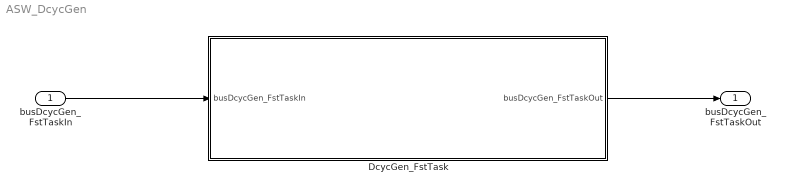
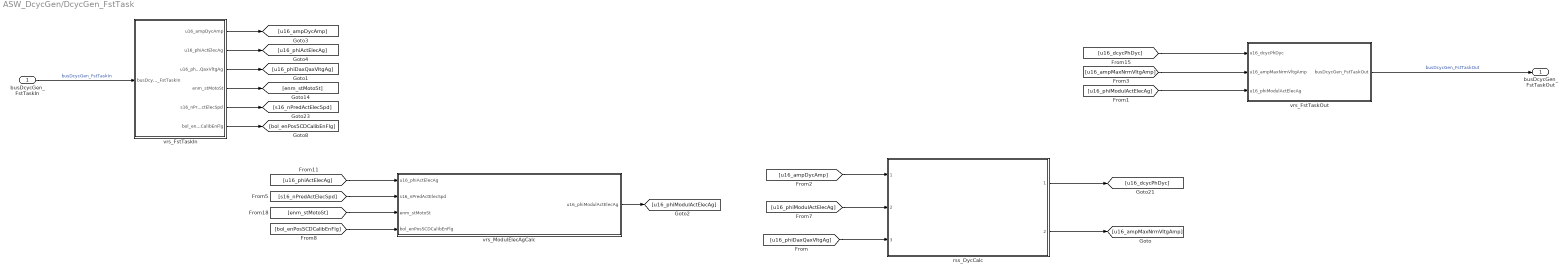
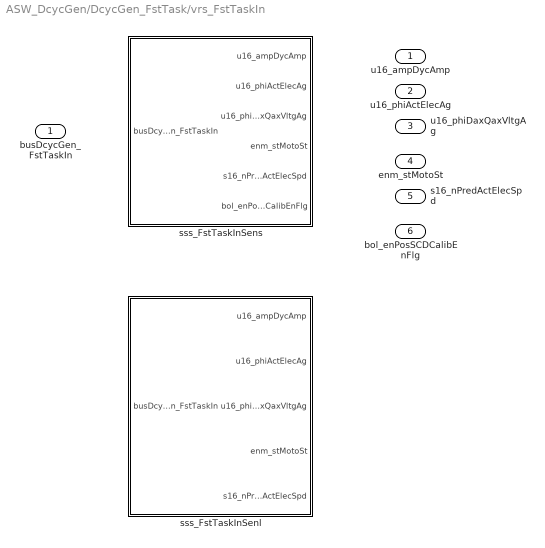
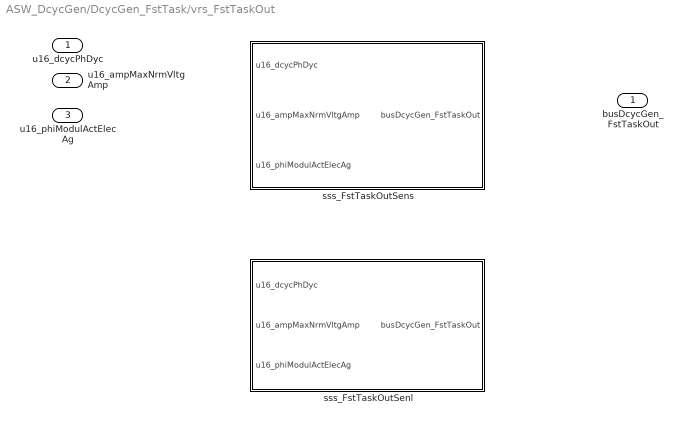
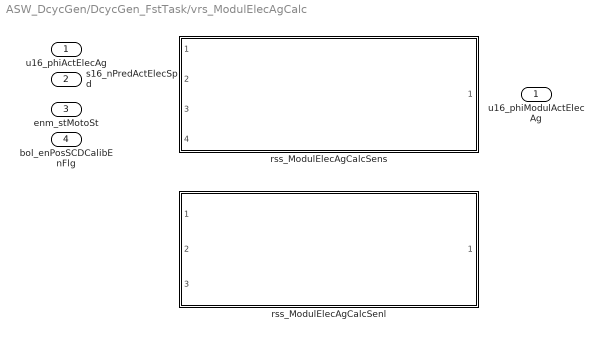
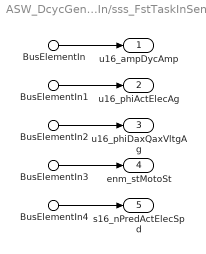
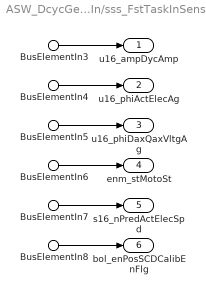
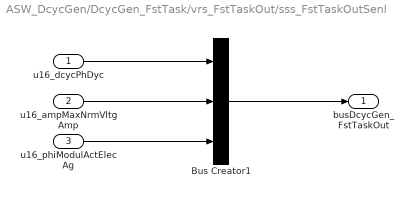
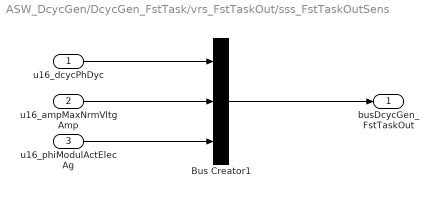
/*
 * File: ASW_DcycGen.c
 *
 * Code generated for Simulink model 'ASW_DcycGen'.
 *
 * Model version                  : 6.161
 * Simulink Coder version         : 9.9 (R2023a) 19-Nov-2022
 * C/C++ source code generated on : Wed Apr  2 08:52:27 2025
 *
 * Target selection: ert.tlc
 * Embedded hardware selection: ARM Compatible->ARM Cortex-M
 * Code generation objectives: Unspecified
 * Validation result: Not run
 */

#include "ASW_DcycGen.h"
#include "ASW_DcycGen_private.h"
#include "motor_control_interface.h"
#include "rtwtypes.h"
#include "custom_type_definition.h"
#include "motor_control_param.h"
#include <string.h>

const BUS_DCYCGEN_FST_TASK_OUT ASW_DcycGen_rtZBUS_DCYCGEN_FST_TASK_OUT = {
  {
    0U, 0U, 0U }
  ,                                    /* u16_dcycPhDyc */
  0U,                                  /* u16_ampMaxNrmVltgAmp */
  0U                                   /* u16_phiModulActElecAg */
};                                     /* BUS_DCYCGEN_FST_TASK_OUT ground */

/* Exported block signals */
BUS_DCYCGEN_FST_TASK_IN busDcycGen_FstTaskIn;/* '<Root>/busDcycGen_FstTaskIn' */
BUS_DCYCGEN_FST_TASK_OUT busDcycGen_FstTaskOut;/* '<S82>/Bus Creator1' */

/* Block states (default storage) */
DW_ASW_DcycGen ASW_DcycGen_DW;
const BUS_DCYCGEN_FST_TASK_IN ASW_DcycGen_rtZBUS_DCYCGEN_FST_ = { 0U,/* u16_ampDycAmp */
  0U,                                  /* u16_phiActElecAg */
  0U,                                  /* u16_phiDaxQaxVltgAg */
  0U,                                  /* enm_stMotoSt */
  0,                                   /* s16_nPredActElecSpd */
  false                                /* bol_enPosSCDCalibEnFlg */
};

/* Output and update for atomic system: '<Root>/DcycGen_FstTask' */
void DcycGen_FstTask(void)
{
  dt_RadAng_u16r15b0 tmp_0;
  dt_Standardize_s16p15b0 tmp;
  sint16 rtb_Switch1;
  uint16 rtb_Add1;
  uint16 rtb_Add1_agvg;
  uint16 rtb_Add1_cvlw;
  uint16 rtb_Add1_hqrl;
  uint16 rtb_Add1_l2i3;
  uint16 rtb_Saturation_0;
  uint16 rtb_Sum;
  boolean rtb_LogicalOperator;
  boolean tmp_1;

  /* Saturate: '<S2>/Saturation' incorporates:
   *  Inport: '<Root>/busDcycGen_FstTaskIn'
   */
  if (busDcycGen_FstTaskIn.u16_ampDycAmp <= 32768) {
    rtb_Saturation_0 = busDcycGen_FstTaskIn.u16_ampDycAmp;
  } else {
    rtb_Saturation_0 = 32768U;
  }

  /* Logic: '<S83>/Logical Operator' incorporates:
   *  Constant: '<S84>/Constant'
   *  Inport: '<Root>/busDcycGen_FstTaskIn'
   *  RelationalOperator: '<S84>/Compare'
   */
  rtb_LogicalOperator = ((busDcycGen_FstTaskIn.enm_stMotoSt != CLOSED_LOOP) ||
    (busDcycGen_FstTaskIn.bol_enPosSCDCalibEnFlg));

  /* Switch: '<S89>/Switch1' incorporates:
   *  Constant: '<S89>/Constant'
   *  Gain: '<S83>/Gain'
   *  Logic: '<S89>/NOT'
   *  Product: '<S89>/Product1'
   *  Saturate: '<S83>/Saturation'
   */
  if (!rtb_LogicalOperator) {
    /* Saturate: '<S83>/Saturation' incorporates:
     *  Inport: '<Root>/busDcycGen_FstTaskIn'
     */
    if (busDcycGen_FstTaskIn.s16_nPredActElecSpd >= -32767) {
      tmp = busDcycGen_FstTaskIn.s16_nPredActElecSpd;
    } else {
      tmp = -32767;
    }

    rtb_Switch1 = (sint16)(((tmp >> 1) * 16777) >> 14);
  } else {
    rtb_Switch1 = 0;
  }

  /* End of Switch: '<S89>/Switch1' */

  /* Switch: '<S94>/Switch1' incorporates:
   *  Constant: '<S94>/Constant1'
   *  UnitDelay: '<S94>/Unit Delay1'
   */
  if (ASW_DcycGen_DW.bitsForTID0.UnitDelay1_DSTATE) {
    tmp_1 = rtb_LogicalOperator;
  } else {
    tmp_1 = true;
  }

  /* Switch: '<S94>/Switch' incorporates:
   *  Inport: '<Root>/busDcycGen_FstTaskIn'
   *  Switch: '<S94>/Switch1'
   *  UnitDelay: '<S94>/Unit Delay'
   */
  if (tmp_1) {
    tmp_0 = busDcycGen_FstTaskIn.u16_phiActElecAg;
  } else {
    tmp_0 = ASW_DcycGen_DW.UnitDelay_DSTATE;
  }

  /* Sum: '<S89>/Sum' incorporates:
   *  Switch: '<S89>/Switch1'
   *  Switch: '<S94>/Switch'
   */
  rtb_Sum = (uint16)((((rtb_Switch1 * 20861) >> 2) + (tmp_0 << 14)) >> 14);

  /* SwitchCase: '<S2>/Switch Case' incorporates:
   *  Constant: '<S2>/Constant'
   *  DataTypeConversion: '<S2>/Data Type Conversion'
   */
  switch (Genm_modePWMMode_C) {
   case 1:
    /* Outputs for IfAction SubSystem: '<S2>/sas_SinuPWM' incorporates:
     *  ActionPort: '<S10>/Action Port'
     */
    /* Sum: '<S67>/Add1' incorporates:
     *  Constant: '<S67>/Constant'
     *  Inport: '<Root>/busDcycGen_FstTaskIn'
     *  Sum: '<S67>/Add'
     *  Sum: '<S89>/Sum'
     *  Switch: '<S89>/Switch'
     */
    rtb_Add1_agvg = (uint16)(((uint32)rtb_Sum) + ((uint16)
      (busDcycGen_FstTaskIn.u16_phiDaxQaxVltgAg - 16384)));

    /* SignalConversion generated from: '<S10>/u16_dcycPhDycCs1' incorporates:
     *  Constant: '<S71>/Constant'
     *  Constant: '<S71>/Constant1'
     *  Constant: '<S71>/Constant2'
     *  Constant: '<S71>/Constant3'
     *  Constant: '<S71>/Constant4'
     *  Constant: '<S71>/Constant5'
     *  Constant: '<S78>/Constant'
     *  Gain: '<S71>/Gain'
     *  Merge: '<S2>/Merge'
     *  Product: '<S71>/Divide'
     *  Product: '<S71>/Product'
     *  Saturate: '<S2>/Saturation'
     *  Selector: '<S71>/Selector'
     *  Selector: '<S71>/Selector1'
     *  Selector: '<S71>/Selector2'
     *  Sum: '<S67>/Add1'
     *  Sum: '<S71>/Add'
     *  Sum: '<S71>/Add3'
     *  Sum: '<S78>/Add'
     */
    busDcycGen_FstTaskOut.u16_dcycPhDyc[0] = (dt_DutyCycl_u16p15b0)
      (((((rtb_Saturation_0 * rtCP_Constant2_Value[(uint16)((1023U * ((((uint32)
                rtb_Add1_agvg) << 15) / 65535U)) >> 15)]) >> 15) << 1) + 32768) >>
       1);
    busDcycGen_FstTaskOut.u16_dcycPhDyc[1] = (dt_DutyCycl_u16p15b0)
      (((((rtb_Saturation_0 * rtCP_Constant3_Value[(uint16)((1023U * ((((uint32)
                ((uint16)(rtb_Add1_agvg - 21845))) << 15) / 65535U)) >> 15)]) >>
          15) << 1) + 32768) >> 1);
    busDcycGen_FstTaskOut.u16_dcycPhDyc[2] = (dt_DutyCycl_u16p15b0)
      (((((rtb_Saturation_0 * rtCP_Constant4_Value[(uint16)((1023U * ((((uint32)
                ((uint16)(rtb_Add1_agvg - 43691))) << 15) / 65535U)) >> 15)]) >>
          15) << 1) + 32768) >> 1);

    /* SignalConversion generated from: '<S10>/u16_ampMaxNrmVltgAmpCs1' incorporates:
     *  Constant: '<S67>/Constant3'
     *  Merge: '<S2>/Merge1'
     *  Product: '<S67>/Product1'
     */
    busDcycGen_FstTaskOut.u16_ampMaxNrmVltgAmp = (dt_DutyCycl_u16p15b0)(((uint32)
      Gu16_facOvrModulFac_C) >> 1);

    /* End of Outputs for SubSystem: '<S2>/sas_SinuPWM' */
    break;

   case 2:
    /* Outputs for IfAction SubSystem: '<S2>/sas_SinuAddThrdHarmPWM' incorporates:
     *  ActionPort: '<S9>/Action Port'
     */
    /* Sum: '<S53>/Add1' incorporates:
     *  Constant: '<S53>/Constant'
     *  Inport: '<Root>/busDcycGen_FstTaskIn'
     *  Sum: '<S53>/Add'
     *  Sum: '<S89>/Sum'
     *  Switch: '<S89>/Switch'
     */
    rtb_Add1_cvlw = (uint16)(((uint32)rtb_Sum) + ((uint16)
      (busDcycGen_FstTaskIn.u16_phiDaxQaxVltgAg - 16384)));

    /* SignalConversion generated from: '<S9>/u16_dcycPhDycCs2' incorporates:
     *  Constant: '<S57>/Constant'
     *  Constant: '<S57>/Constant1'
     *  Constant: '<S57>/Constant2'
     *  Constant: '<S57>/Constant3'
     *  Constant: '<S57>/Constant4'
     *  Constant: '<S57>/Constant5'
     *  Constant: '<S64>/Constant'
     *  Gain: '<S57>/Gain'
     *  Merge: '<S2>/Merge'
     *  Product: '<S57>/Divide'
     *  Product: '<S57>/Product'
     *  Saturate: '<S2>/Saturation'
     *  Selector: '<S57>/Selector'
     *  Selector: '<S57>/Selector1'
     *  Selector: '<S57>/Selector2'
     *  Sum: '<S53>/Add1'
     *  Sum: '<S57>/Add'
     *  Sum: '<S57>/Add3'
     *  Sum: '<S64>/Add'
     */
    busDcycGen_FstTaskOut.u16_dcycPhDyc[0] = (dt_DutyCycl_u16p15b0)
      (((((rtb_Saturation_0 * rtCP_Constant2_Value_o0nc[(uint16)((1023U *
             ((((uint32)rtb_Add1_cvlw) << 15) / 65535U)) >> 15)]) >> 15) << 1) +
        32768) >> 1);
    busDcycGen_FstTaskOut.u16_dcycPhDyc[1] = (dt_DutyCycl_u16p15b0)
      (((((rtb_Saturation_0 * rtCP_Constant3_Value_plsi[(uint16)((1023U *
             ((((uint32)((uint16)(rtb_Add1_cvlw - 21845))) << 15) / 65535U)) >>
            15)]) >> 15) << 1) + 32768) >> 1);
    busDcycGen_FstTaskOut.u16_dcycPhDyc[2] = (dt_DutyCycl_u16p15b0)
      (((((rtb_Saturation_0 * rtCP_Constant4_Value_dztf[(uint16)((1023U *
             ((((uint32)((uint16)(rtb_Add1_cvlw - 43691))) << 15) / 65535U)) >>
            15)]) >> 15) << 1) + 32768) >> 1);

    /* SignalConversion generated from: '<S9>/u16_ampMaxNrmVltgAmpCs2' incorporates:
     *  Constant: '<S53>/Constant1'
     *  Constant: '<S53>/Constant3'
     *  Merge: '<S2>/Merge1'
     *  Product: '<S53>/Product1'
     */
    busDcycGen_FstTaskOut.u16_ampMaxNrmVltgAmp = (dt_DutyCycl_u16p15b0)((18919U *
      Gu16_facOvrModulFac_C) >> 15);

    /* End of Outputs for SubSystem: '<S2>/sas_SinuAddThrdHarmPWM' */
    break;

   case 3:
    /* Outputs for IfAction SubSystem: '<S2>/sas_SVPWM' incorporates:
     *  ActionPort: '<S8>/Action Port'
     */
    /* Sum: '<S39>/Add1' incorporates:
     *  Constant: '<S39>/Constant'
     *  Inport: '<Root>/busDcycGen_FstTaskIn'
     *  Sum: '<S39>/Add'
     *  Sum: '<S89>/Sum'
     *  Switch: '<S89>/Switch'
     */
    rtb_Add1_l2i3 = (uint16)(((uint32)rtb_Sum) + ((uint16)
      (busDcycGen_FstTaskIn.u16_phiDaxQaxVltgAg - 16384)));

    /* SignalConversion generated from: '<S8>/u16_dcycPhDycCs3' incorporates:
     *  Constant: '<S43>/Constant'
     *  Constant: '<S43>/Constant1'
     *  Constant: '<S43>/Constant2'
     *  Constant: '<S43>/Constant3'
     *  Constant: '<S43>/Constant4'
     *  Constant: '<S43>/Constant5'
     *  Constant: '<S50>/Constant'
     *  Gain: '<S43>/Gain'
     *  Merge: '<S2>/Merge'
     *  Product: '<S43>/Divide'
     *  Product: '<S43>/Product'
     *  Saturate: '<S2>/Saturation'
     *  Selector: '<S43>/Selector'
     *  Selector: '<S43>/Selector1'
     *  Selector: '<S43>/Selector2'
     *  Sum: '<S39>/Add1'
     *  Sum: '<S43>/Add'
     *  Sum: '<S43>/Add3'
     *  Sum: '<S50>/Add'
     */
    busDcycGen_FstTaskOut.u16_dcycPhDyc[0] = (dt_DutyCycl_u16p15b0)
      (((((rtb_Saturation_0 * rtCP_Constant2_Value_oxew[(uint16)((1023U *
             ((((uint32)rtb_Add1_l2i3) << 15) / 65535U)) >> 15)]) >> 15) << 1) +
        32768) >> 1);
    busDcycGen_FstTaskOut.u16_dcycPhDyc[1] = (dt_DutyCycl_u16p15b0)
      (((((rtb_Saturation_0 * rtCP_Constant3_Value_dctq[(uint16)((1023U *
             ((((uint32)((uint16)(rtb_Add1_l2i3 - 21845))) << 15) / 65535U)) >>
            15)]) >> 15) << 1) + 32768) >> 1);
    busDcycGen_FstTaskOut.u16_dcycPhDyc[2] = (dt_DutyCycl_u16p15b0)
      (((((rtb_Saturation_0 * rtCP_Constant4_Value_hsqu[(uint16)((1023U *
             ((((uint32)((uint16)(rtb_Add1_l2i3 - 43691))) << 15) / 65535U)) >>
            15)]) >> 15) << 1) + 32768) >> 1);

    /* SignalConversion generated from: '<S8>/u16_ampMaxNrmVltgAmpCs3' incorporates:
     *  Constant: '<S39>/Constant1'
     *  Constant: '<S39>/Constant3'
     *  Merge: '<S2>/Merge1'
     *  Product: '<S39>/Product1'
     */
    busDcycGen_FstTaskOut.u16_ampMaxNrmVltgAmp = (dt_DutyCycl_u16p15b0)((18919U *
      Gu16_facOvrModulFac_C) >> 15);

    /* End of Outputs for SubSystem: '<S2>/sas_SVPWM' */
    break;

   case 4:
    /* Outputs for IfAction SubSystem: '<S2>/sas_DisnMinPWM' incorporates:
     *  ActionPort: '<S7>/Action Port'
     */
    /* Sum: '<S25>/Add1' incorporates:
     *  Constant: '<S25>/Constant'
     *  Inport: '<Root>/busDcycGen_FstTaskIn'
     *  Sum: '<S25>/Add'
     *  Sum: '<S89>/Sum'
     *  Switch: '<S89>/Switch'
     */
    rtb_Add1_hqrl = (uint16)(((uint32)rtb_Sum) + ((uint16)
      (busDcycGen_FstTaskIn.u16_phiDaxQaxVltgAg - 16384)));

    /* SignalConversion generated from: '<S7>/u16_dcycPhDycCs4' incorporates:
     *  Constant: '<S29>/Constant'
     *  Constant: '<S29>/Constant1'
     *  Constant: '<S29>/Constant2'
     *  Constant: '<S29>/Constant3'
     *  Constant: '<S29>/Constant4'
     *  Constant: '<S29>/Constant5'
     *  Gain: '<S29>/Gain'
     *  Merge: '<S2>/Merge'
     *  Product: '<S29>/Divide'
     *  Product: '<S29>/Product'
     *  Saturate: '<S2>/Saturation'
     *  Selector: '<S29>/Selector'
     *  Selector: '<S29>/Selector1'
     *  Selector: '<S29>/Selector2'
     *  Sum: '<S25>/Add1'
     *  Sum: '<S29>/Add'
     *  Sum: '<S29>/Add3'
     *  Sum: '<S36>/Add'
     */
    busDcycGen_FstTaskOut.u16_dcycPhDyc[0] = (uint16)(((uint16)
      ((rtb_Saturation_0 * rtCP_Constant2_Value_jykr[(uint16)((1023U *
      ((((uint32)rtb_Add1_hqrl) << 15) / 65535U)) >> 15)]) >> 15)) << 1);
    busDcycGen_FstTaskOut.u16_dcycPhDyc[1] = (uint16)(((uint16)
      ((rtb_Saturation_0 * rtCP_Constant3_Value_j2aj[(uint16)((1023U *
      ((((uint32)((uint16)(rtb_Add1_hqrl - 21845))) << 15) / 65535U)) >> 15)]) >>
       15)) << 1);
    busDcycGen_FstTaskOut.u16_dcycPhDyc[2] = (uint16)(((uint16)
      ((rtb_Saturation_0 * rtCP_Constant4_Value_e3ib[(uint16)((1023U *
      ((((uint32)((uint16)(rtb_Add1_hqrl - 43691))) << 15) / 65535U)) >> 15)]) >>
       15)) << 1);

    /* SignalConversion generated from: '<S7>/u16_ampMaxNrmVltgAmpCs4' incorporates:
     *  Constant: '<S25>/Constant1'
     *  Constant: '<S25>/Constant3'
     *  Merge: '<S2>/Merge1'
     *  Product: '<S25>/Product1'
     */
    busDcycGen_FstTaskOut.u16_ampMaxNrmVltgAmp = (dt_DutyCycl_u16p15b0)((18919U *
      Gu16_facOvrModulFac_C) >> 15);

    /* End of Outputs for SubSystem: '<S2>/sas_DisnMinPWM' */
    break;

   default:
    /* Outputs for IfAction SubSystem: '<S2>/sas_Dfl' incorporates:
     *  ActionPort: '<S6>/Action Port'
     */
    /* Sum: '<S11>/Add1' incorporates:
     *  Constant: '<S11>/Constant'
     *  Inport: '<Root>/busDcycGen_FstTaskIn'
     *  Sum: '<S11>/Add'
     *  Sum: '<S89>/Sum'
     *  Switch: '<S89>/Switch'
     */
    rtb_Add1 = (uint16)(((uint32)rtb_Sum) + ((uint16)
      (busDcycGen_FstTaskIn.u16_phiDaxQaxVltgAg - 16384)));

    /* SignalConversion generated from: '<S6>/u16_dcycPhDycCsDfl' incorporates:
     *  Constant: '<S15>/Constant'
     *  Constant: '<S15>/Constant1'
     *  Constant: '<S15>/Constant2'
     *  Constant: '<S15>/Constant3'
     *  Constant: '<S15>/Constant4'
     *  Constant: '<S15>/Constant5'
     *  Constant: '<S22>/Constant'
     *  Gain: '<S15>/Gain'
     *  Merge: '<S2>/Merge'
     *  Product: '<S15>/Divide'
     *  Product: '<S15>/Product'
     *  Saturate: '<S2>/Saturation'
     *  Selector: '<S15>/Selector'
     *  Selector: '<S15>/Selector1'
     *  Selector: '<S15>/Selector2'
     *  Sum: '<S11>/Add1'
     *  Sum: '<S15>/Add'
     *  Sum: '<S15>/Add3'
     *  Sum: '<S22>/Add'
     */
    busDcycGen_FstTaskOut.u16_dcycPhDyc[0] = (dt_DutyCycl_u16p15b0)
      (((((rtb_Saturation_0 * rtCP_Constant2_Value_fxfk[(uint16)((1023U *
             ((((uint32)rtb_Add1) << 15) / 65535U)) >> 15)]) >> 15) << 1) +
        32768) >> 1);
    busDcycGen_FstTaskOut.u16_dcycPhDyc[1] = (dt_DutyCycl_u16p15b0)
      (((((rtb_Saturation_0 * rtCP_Constant3_Value_pkbs[(uint16)((1023U *
             ((((uint32)((uint16)(rtb_Add1 - 21845))) << 15) / 65535U)) >> 15)])
          >> 15) << 1) + 32768) >> 1);
    busDcycGen_FstTaskOut.u16_dcycPhDyc[2] = (dt_DutyCycl_u16p15b0)
      (((((rtb_Saturation_0 * rtCP_Constant4_Value_imww[(uint16)((1023U *
             ((((uint32)((uint16)(rtb_Add1 - 43691))) << 15) / 65535U)) >> 15)])
          >> 15) << 1) + 32768) >> 1);

    /* SignalConversion generated from: '<S6>/u16_ampMaxNrmVltgAmpCsDfl' incorporates:
     *  Constant: '<S11>/Constant1'
     *  Constant: '<S11>/Constant3'
     *  Merge: '<S2>/Merge1'
     *  Product: '<S11>/Product1'
     */
    busDcycGen_FstTaskOut.u16_ampMaxNrmVltgAmp = (dt_DutyCycl_u16p15b0)((18919U *
      Gu16_facOvrModulFac_C) >> 15);

    /* End of Outputs for SubSystem: '<S2>/sas_Dfl' */
    break;
  }

  /* End of SwitchCase: '<S2>/Switch Case' */

  /* BusCreator: '<S82>/Bus Creator1' incorporates:
   *  Sum: '<S89>/Sum'
   *  Switch: '<S89>/Switch'
   */
  busDcycGen_FstTaskOut.u16_phiModulActElecAg = rtb_Sum;

  /* Update for UnitDelay: '<S94>/Unit Delay1' incorporates:
   *  Constant: '<S94>/Constant'
   */
  ASW_DcycGen_DW.bitsForTID0.UnitDelay1_DSTATE = true;

  /* Update for UnitDelay: '<S94>/Unit Delay' incorporates:
   *  Sum: '<S89>/Sum'
   *  Switch: '<S89>/Switch'
   */
  ASW_DcycGen_DW.UnitDelay_DSTATE = rtb_Sum;
}

/* Model step function */
void ASW_DcycGen_step(void)
{
  /* Outputs for Atomic SubSystem: '<Root>/DcycGen_FstTask' */
  DcycGen_FstTask();

  /* End of Outputs for SubSystem: '<Root>/DcycGen_FstTask' */
}
